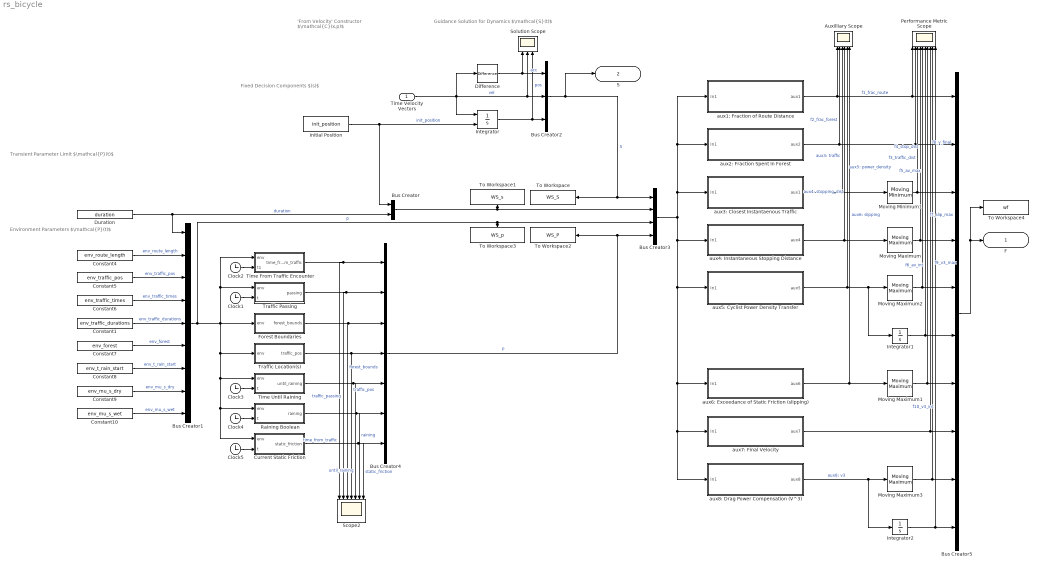
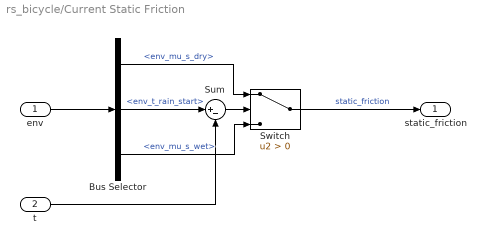
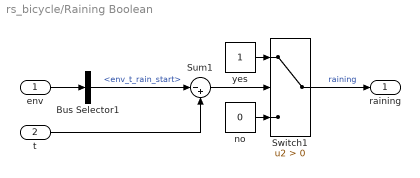
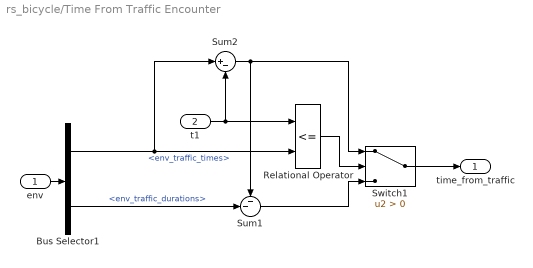
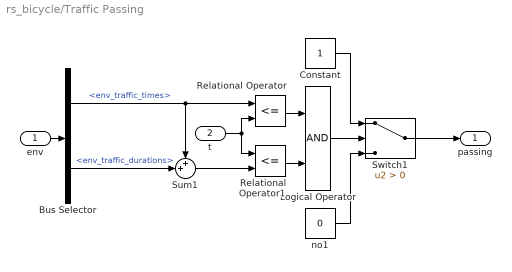
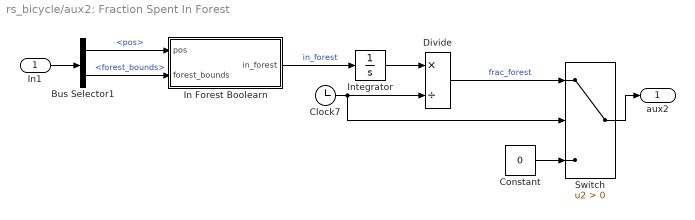
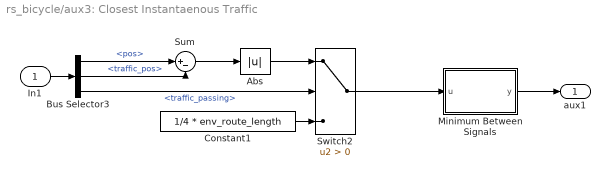
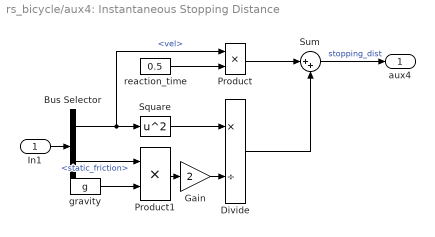
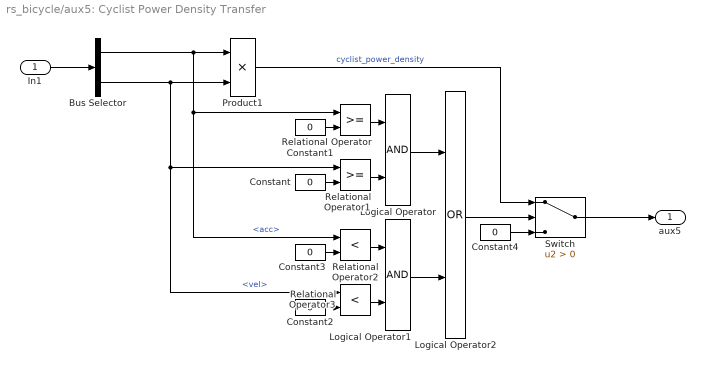
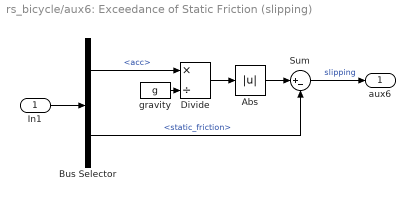
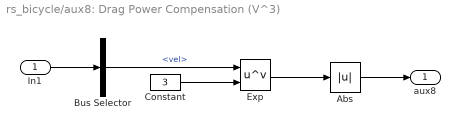
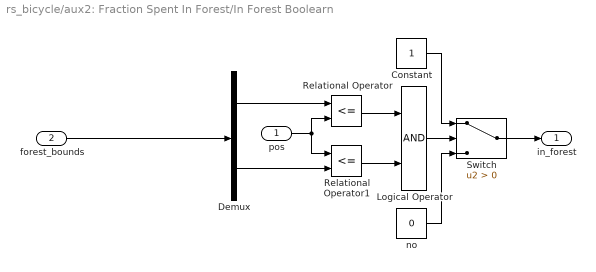
== system rs_bicycle/Forest Boundaries ==
  env : Inport
  Bus Selector : BusSelector  OutputSignals=env_forest,env_route_length
  Product : Product
  forest_bounds : Outport
  wires:
  Bus Selector/1 -> Product/1  "<env_forest>"
  Bus Selector/2 -> Product/2  "<env_route_length>"
  Product/1 -> forest_bounds/1
  env/1 -> Bus Selector/1

== system rs_bicycle/Time Until Raining ==
  env : Inport
  t : Inport  Port=2
  Bus Selector1 : BusSelector  OutputSignals=env_t_rain_start
  Sum1 : Sum  Inputs=|+-
  until_raining : Outport
  wires:
  Bus Selector1/1 -> Sum1/1  "<env_t_rain_start>"
  env/1 -> Bus Selector1/1
  t/1 -> Sum1/2
  Sum1/1 -> until_raining/1

== system rs_bicycle/Traffic Location(s) ==
  env : Inport
  Bus Selector : BusSelector  OutputSignals=env_traffic_pos,env_route_length
  Product : Product
  traffic_pos : Outport
  wires:
  Bus Selector/1 -> Product/1  "<env_traffic_pos>"
  Bus Selector/2 -> Product/2  "<env_route_length>"
  Product/1 -> traffic_pos/1
  env/1 -> Bus Selector/1

== system rs_bicycle/aux1: Fraction of Route Distance ==
  In1 : Inport
  Bus Selector : BusSelector  OutputSignals=S.pos,p.env_route_length
  Divide : Product  Inputs=*/
  Moving Maximum : dspstat3/Moving Maximum  SpecifyWindowLength=on  WindowLength=4  SimulateUsing=Code generation
  aux1 : Outport
  wires:
  Divide/1 -> aux1/1  "frac_dist"
  In1/1 -> Bus Selector/1
  Bus Selector/2 -> Divide/2  "<env_route_length>"
  Bus Selector/1 -> Moving Maximum/1  "<pos>"
  Moving Maximum/1 -> Divide/1

== system rs_bicycle/aux7: Final Velocity ==
  In1 : Inport
  Bus Selector : BusSelector  OutputSignals=S.vel
  aux7 : Outport
  wires:
  In1/1 -> Bus Selector/1
  Bus Selector/1 -> aux7/1  "<vel>"

== matlab function rs_bicycle/aux3: Closest Instantaenous Traffic/Minimum Between Signals
 ==
function y = fcn(u)

y = min(u);

/*
 * rs_bicycle.c
 *
 * Academic License - for use in teaching, academic research, and meeting
 * course requirements at degree granting institutions only.  Not for
 * government, commercial, or other organizational use.
 *
 * Code generation for model "rs_bicycle".
 *
 * Model version              : 1.71
 * Simulink Coder version : 9.2 (R2019b) 18-Jul-2019
 * C source code generated on : Wed Oct 30 16:52:37 2019
 *
 * Target selection: rsim.tlc
 * Note: GRT includes extra infrastructure and instrumentation for prototyping
 * Embedded hardware selection: Intel->x86-64 (Linux 64)
 * Code generation objectives: Unspecified
 * Validation result: Not run
 */

#include <math.h>
#include "rs_bicycle.h"
#include "rs_bicycle_private.h"
#include "rs_bicycle_dt.h"

/* user code (top of parameter file) */
const int_T gblNumToFiles = 0;
const int_T gblNumFrFiles = 0;
const int_T gblNumFrWksBlocks = 0;
const char *gblSlvrJacPatternFileName =
  "rs_bicycle_rsim_rtw//rs_bicycle_Jpattern.mat";

/* Root inports information  */
const int_T gblNumRootInportBlks = 1;
const int_T gblNumModelInputs = 1;
extern rtInportTUtable *gblInportTUtables;
extern const char *gblInportFileName;
const int_T gblInportDataTypeIdx[] = { 0 };

const int_T gblInportDims[] = { 1, 1 } ;

const int_T gblInportComplex[] = { 0 };

const int_T gblInportInterpoFlag[] = { 1 };

const int_T gblInportContinuous[] = { 1 };

#include "simstruc.h"
#include "fixedpoint.h"

/* Block signals (default storage) */
B rtB;

/* Continuous states */
X rtX;

/* Block states (default storage) */
DW rtDW;

/* External inputs (root inport signals with default storage) */
ExtU rtU;

/* External outputs (root outports fed by signals with default storage) */
ExtY rtY;

/* Parent Simstruct */
static SimStruct model_S;
SimStruct *const rtS = &model_S;

/* Forward declaration for local functions */
static void rs_bicycle_SystemCore_release(dsp_MovingMaximum_rs_bicycle_T *obj);
static void rs_bicycle_SystemCore_delete(dsp_MovingMaximum_rs_bicycle_T *obj);
static void matlabCodegenHandle_matlabCodeg(dsp_MovingMaximum_rs_bicycle_T *obj);

/* Forward declaration for local functions */
static real_T AbstractSlidingWindowMinMaxCG_s(e_dsp_private_SlidingWindowMi_T
  *obj, real_T x);
static void rs_bicycl_SystemCore_release_or(dsp_MovingMaximum_rs_bicycl_o_T *obj);
static void rs_bicycle_SystemCore_delete_or(dsp_MovingMaximum_rs_bicycl_o_T *obj);
static void matlabCodegenHandle_matlabCo_or(dsp_MovingMaximum_rs_bicycl_o_T *obj);
static void rs_bicycle_SystemCore_release_o(dsp_MovingMinimum_rs_bicycle_T *obj);
static void rs_bicycle_SystemCore_delete_o(dsp_MovingMinimum_rs_bicycle_T *obj);
static void matlabCodegenHandle_matlabCod_o(dsp_MovingMinimum_rs_bicycle_T *obj);
static void rs_bicycle_SystemCore_release(dsp_MovingMaximum_rs_bicycle_T *obj)
{
  dsp_MovingMaximum_rs_bicycle_T *obj_0;
  e_dsp_private_SlidingWindowMa_T *obj_1;
  if (obj->isInitialized == 1) {
    obj_0 = obj;
    if (obj_0->isSetupComplete) {
      obj_0->NumChannels = -1;
      obj_1 = obj_0->pStat;
      if (obj_1->isInitialized == 1) {
        obj_1->isInitialized = 2;
      }
    }
  }
}

static void rs_bicycle_SystemCore_delete(dsp_MovingMaximum_rs_bicycle_T *obj)
{
  rs_bicycle_SystemCore_release(obj);
}

static void matlabCodegenHandle_matlabCodeg(dsp_MovingMaximum_rs_bicycle_T *obj)
{
  if (!obj->matlabCodegenIsDeleted) {
    obj->matlabCodegenIsDeleted = true;
    rs_bicycle_SystemCore_delete(obj);
  }
}

/*
 * System initialize for atomic system:
 *    synthesized block
 *    synthesized block
 *    synthesized block
 *    synthesized block
 */
void rs_bicycle_MovingMaximum3_Init(DW_MovingMaximum3_rs_bicycle_T *localDW)
{
  dsp_MovingMaximum_rs_bicycle_T *obj;
  e_dsp_private_SlidingWindowMa_T *obj_0;
  int32_T i;

  /* InitializeConditions for MATLABSystem: '<Root>/Moving Maximum3' */
  obj = &localDW->obj;
  obj_0 = obj->pStat;
  if (obj_0->isInitialized == 1) {
    for (i = 0; i < 200; i++) {
      obj_0->pBuffer[i] = 0.0;
    }

    for (i = 0; i < 200; i++) {
      obj_0->pBufferIdx[i] = 0;
    }

    obj_0->pNumElements = 0;
    obj_0->pCount = 1;
    obj_0->pTop = 1;
  }

  /* End of InitializeConditions for MATLABSystem: '<Root>/Moving Maximum3' */
}

/*
 * Start for atomic system:
 *    synthesized block
 *    synthesized block
 *    synthesized block
 *    synthesized block
 */
void rs_bicycle_MovingMaximum3_Start(DW_MovingMaximum3_rs_bicycle_T *localDW)
{
  e_dsp_private_SlidingWindowMa_T *iobj_0;
  dsp_MovingMaximum_rs_bicycle_T *b_obj;
  dsp_MovingMaximum_rs_bicycle_T *obj;

  /* Start for MATLABSystem: '<Root>/Moving Maximum3' */
  localDW->obj.matlabCodegenIsDeleted = true;
  iobj_0 = &localDW->gobj_0;
  b_obj = &localDW->obj;
  b_obj->isInitialized = 0;
  b_obj->NumChannels = -1;
  b_obj->matlabCodegenIsDeleted = false;
  localDW->objisempty = true;
  b_obj = &localDW->obj;
  b_obj->isSetupComplete = false;
  b_obj->isInitialized = 1;
  obj = b_obj;
  obj->NumChannels = 1;
  iobj_0->isInitialized = 0;
  obj->pStat = iobj_0;
  iobj_0 = obj->pStat;
  iobj_0->isSetupComplete = false;
  iobj_0->isInitialized = 1;
  iobj_0->isSetupComplete = true;
  b_obj->isSetupComplete = true;
}

/*
 * Output and update for atomic system:
 *    synthesized block
 *    synthesized block
 *    synthesized block
 *    synthesized block
 */
void rs_bicycle_MovingMaximum3(real_T rtu_0, B_MovingMaximum3_rs_bicycle_T
  *localB, DW_MovingMaximum3_rs_bicycle_T *localDW)
{
  dsp_MovingMaximum_rs_bicycle_T *obj;
  e_dsp_private_SlidingWindowMa_T *obj_0;
  e_dsp_private_SlidingWindowMa_T *obj_1;
  real_T buf[200];
  int32_T bufIdx[200];
  int32_T numElements;
  int32_T cnt;
  int32_T top;
  int32_T winLen;
  int32_T placement;
  int32_T ind_vect[200];
  int32_T N;
  int32_T count;
  int32_T indVal;
  boolean_T cond;
  int32_T b_ind;
  e_dsp_private_SlidingWindowMa_T *obj_2;
  real_T y;
  int32_T i;
  boolean_T exitg1;

  /* MATLABSystem: '<Root>/Moving Maximum3' */
  obj = &localDW->obj;
  obj_0 = obj->pStat;
  if (obj_0->isInitialized != 1) {
    obj_1 = obj_0;
    obj_2 = obj_1;
    obj_2->isSetupComplete = false;
    obj_2->isInitialized = 1;
    obj_2->isSetupComplete = true;
    for (i = 0; i < 200; i++) {
      obj_1->pBuffer[i] = 0.0;
    }

    for (i = 0; i < 200; i++) {
      obj_1->pBufferIdx[i] = 0;
    }

    obj_1->pNumElements = 0;
    obj_1->pCount = 1;
    obj_1->pTop = 1;
  }

  for (i = 0; i < 200; i++) {
    buf[i] = obj_0->pBuffer[i];
  }

  for (i = 0; i < 200; i++) {
    bufIdx[i] = obj_0->pBufferIdx[i];
  }

  numElements = obj_0->pNumElements;
  cnt = obj_0->pCount;
  top = obj_0->pTop;
  if (numElements > 0) {
    i = bufIdx[top - 1];
    if ((cnt >= 0) && (i < cnt - MAX_int32_T)) {
      i = MAX_int32_T;
    } else if ((cnt < 0) && (i > cnt - MIN_int32_T)) {
      i = MIN_int32_T;
    } else {
      i = cnt - i;
    }

    if (i == 200) {
      if (top > 2147483646) {
        top = MAX_int32_T;
      } else {
        top++;
      }

      if (top > 200) {
        top = 1;
      }

      numElements--;
    }
  }

  if ((numElements < 0) && (top < MIN_int32_T - numElements)) {
    i = MIN_int32_T;
  } else if ((numElements > 0) && (top > MAX_int32_T - numElements)) {
    i = MAX_int32_T;
  } else {
    i = numElements + top;
  }

  if (i < -2147483647) {
    placement = MIN_int32_T;
  } else {
    placement = i - 1;
  }

  if (placement >= 200) {
    placement -= 200;
  }

  i = placement + 1;
  placement = i - 1;
  memset(&ind_vect[0], 0, 200U * sizeof(int32_T));
  N = numElements;
  if (numElements > 0) {
    count = 1;
    i = numElements - 1;
    if (i >= 0) {
      if (top < -2147483647) {
        winLen = MIN_int32_T;
      } else {
        winLen = top - 1;
      }
    }

    for (b_ind = i; b_ind >= 0; b_ind--) {
      if ((winLen < 0) && (b_ind < MIN_int32_T - winLen)) {
        indVal = MIN_int32_T;
      } else if ((winLen > 0) && (b_ind > MAX_int32_T - winLen)) {
        indVal = MAX_int32_T;
      } else {
        indVal = winLen + b_ind;
      }

      if (indVal >= 200) {
        indVal -= 200;
      }

      indVal++;
      ind_vect[count - 1] = indVal;
      if (count > 2147483646) {
        count = MAX_int32_T;
      } else {
        count++;
      }
    }

    winLen = 1;
    exitg1 = false;
    while ((!exitg1) && (winLen - 1 <= numElements - 1)) {
      count = winLen - 1;
      count = ind_vect[count];
      y = buf[count - 1];
      cond = (rtu_0 < y);
      if (cond) {
        exitg1 = true;
      } else {
        placement = count - 1;
        if (N < -2147483647) {
          N = MIN_int32_T;
        } else {
          N--;
        }

        winLen++;
      }
    }
  }

  buf[placement] = rtu_0;
  bufIdx[placement] = cnt;
  if (N > 2147483646) {
    numElements = MAX_int32_T;
  } else {
    numElements = N + 1;
  }

  y = buf[top - 1];
  if (cnt > 2147483646) {
    cnt = MAX_int32_T;
  } else {
    cnt++;
  }

  if (cnt > 1000000) {
    cnt -= 1000000;
    for (winLen = 0; winLen < 200; winLen++) {
      i = bufIdx[winLen];
      if (i < -2146483648) {
        i = MIN_int32_T;
      } else {
        i -= 1000000;
      }

      bufIdx[winLen] = i;
    }
  }

  for (i = 0; i < 200; i++) {
    obj_0->pBuffer[i] = buf[i];
  }

  for (i = 0; i < 200; i++) {
    obj_0->pBufferIdx[i] = bufIdx[i];
  }

  obj_0->pNumElements = numElements;
  obj_0->pCount = cnt;
  obj_0->pTop = top;
  localB->f9_v3_max = y;

  /* End of MATLABSystem: '<Root>/Moving Maximum3' */
}

/*
 * Termination for atomic system:
 *    synthesized block
 *    synthesized block
 *    synthesized block
 *    synthesized block
 */
void rs_bicycle_MovingMaximum3_Term(DW_MovingMaximum3_rs_bicycle_T *localDW)
{
  /* Terminate for MATLABSystem: '<Root>/Moving Maximum3' */
  matlabCodegenHandle_matlabCodeg(&localDW->obj);
}

static real_T AbstractSlidingWindowMinMaxCG_s(e_dsp_private_SlidingWindowMi_T
  *obj, real_T x)
{
  real_T m;
  real_T buf[500];
  int32_T bufIdx[500];
  int32_T numElements;
  int32_T cnt;
  int32_T top;
  int32_T winLen;
  int32_T placement;
  int32_T ind_vect[500];
  int32_T N;
  int32_T count;
  int32_T indVal;
  boolean_T cond;
  int32_T b_ind;
  real_T y;
  int32_T qY;
  boolean_T exitg1;
  memcpy(&buf[0], &obj->pBuffer[0], 500U * sizeof(real_T));
  memcpy(&bufIdx[0], &obj->pBufferIdx[0], 500U * sizeof(int32_T));
  numElements = obj->pNumElements;
  cnt = obj->pCount;
  top = obj->pTop;
  if (numElements > 0) {
    winLen = bufIdx[top - 1];
    if ((cnt >= 0) && (winLen < cnt - MAX_int32_T)) {
      winLen = MAX_int32_T;
    } else if ((cnt < 0) && (winLen > cnt - MIN_int32_T)) {
      winLen = MIN_int32_T;
    } else {
      winLen = cnt - winLen;
    }

    if (winLen == 500) {
      if (top > 2147483646) {
        top = MAX_int32_T;
      } else {
        top++;
      }

      if (top > 500) {
        top = 1;
      }

      numElements--;
    }
  }

  if ((numElements < 0) && (top < MIN_int32_T - numElements)) {
    winLen = MIN_int32_T;
  } else if ((numElements > 0) && (top > MAX_int32_T - numElements)) {
    winLen = MAX_int32_T;
  } else {
    winLen = numElements + top;
  }

  if (winLen < -2147483647) {
    placement = MIN_int32_T;
  } else {
    placement = winLen - 1;
  }

  if (placement >= 500) {
    placement -= 500;
  }

  winLen = placement + 1;
  placement = winLen - 1;
  memset(&ind_vect[0], 0, 500U * sizeof(int32_T));
  N = numElements;
  if (numElements > 0) {
    count = 1;
    winLen = numElements - 1;
    if (winLen >= 0) {
      if (top < -2147483647) {
        qY = MIN_int32_T;
      } else {
        qY = top - 1;
      }
    }

    for (b_ind = winLen; b_ind >= 0; b_ind--) {
      if ((qY < 0) && (b_ind < MIN_int32_T - qY)) {
        indVal = MIN_int32_T;
      } else if ((qY > 0) && (b_ind > MAX_int32_T - qY)) {
        indVal = MAX_int32_T;
      } else {
        indVal = qY + b_ind;
      }

      if (indVal >= 500) {
        indVal -= 500;
      }

      indVal++;
      ind_vect[count - 1] = indVal;
      if (count > 2147483646) {
        count = MAX_int32_T;
      } else {
        count++;
      }
    }

    winLen = 1;
    exitg1 = false;
    while ((!exitg1) && (winLen - 1 <= numElements - 1)) {
      count = winLen - 1;
      count = ind_vect[count];
      y = buf[count - 1];
      cond = (x > y);
      if (cond) {
        exitg1 = true;
      } else {
        placement = count - 1;
        if (N < -2147483647) {
          N = MIN_int32_T;
        } else {
          N--;
        }

        winLen++;
      }
    }
  }

  buf[placement] = x;
  bufIdx[placement] = cnt;
  if (N > 2147483646) {
    numElements = MAX_int32_T;
  } else {
    numElements = N + 1;
  }

  m = buf[top - 1];
  if (cnt > 2147483646) {
    cnt = MAX_int32_T;
  } else {
    cnt++;
  }

  if (cnt > 1000000) {
    cnt -= 1000000;
    for (placement = 0; placement < 500; placement++) {
      winLen = bufIdx[placement];
      if (winLen < -2146483648) {
        winLen = MIN_int32_T;
      } else {
        winLen -= 1000000;
      }

      bufIdx[placement] = winLen;
    }
  }

  memcpy(&obj->pBuffer[0], &buf[0], 500U * sizeof(real_T));
  memcpy(&obj->pBufferIdx[0], &bufIdx[0], 500U * sizeof(int32_T));
  obj->pNumElements = numElements;
  obj->pCount = cnt;
  obj->pTop = top;
  return m;
}

real_T rt_powd_snf(real_T u0, real_T u1)
{
  real_T y;
  real_T tmp;
  real_T tmp_0;
  if (rtIsNaN(u0) || rtIsNaN(u1)) {
    y = (rtNaN);
  } else {
    tmp = fabs(u0);
    tmp_0 = fabs(u1);
    if (rtIsInf(u1)) {
      if (tmp == 1.0) {
        y = 1.0;
      } else if (tmp > 1.0) {
        if (u1 > 0.0) {
          y = (rtInf);
        } else {
          y = 0.0;
        }
      } else if (u1 > 0.0) {
        y = 0.0;
      } else {
        y = (rtInf);
      }
    } else if (tmp_0 == 0.0) {
      y = 1.0;
    } else if (tmp_0 == 1.0) {
      if (u1 > 0.0) {
        y = u0;
      } else {
        y = 1.0 / u0;
      }
    } else if (u1 == 2.0) {
      y = u0 * u0;
    } else if ((u1 == 0.5) && (u0 >= 0.0)) {
      y = sqrt(u0);
    } else if ((u0 < 0.0) && (u1 > floor(u1))) {
      y = (rtNaN);
    } else {
      y = pow(u0, u1);
    }
  }

  return y;
}

static void rs_bicycl_SystemCore_release_or(dsp_MovingMaximum_rs_bicycl_o_T *obj)
{
  dsp_MovingMaximum_rs_bicycl_o_T *obj_0;
  e_dsp_private_SlidingWindow_o_T *obj_1;
  if (obj->isInitialized == 1) {
    obj_0 = obj;
    if (obj_0->isSetupComplete) {
      obj_0->NumChannels = -1;
      obj_1 = obj_0->pStat;
      if (obj_1->isInitialized == 1) {
        obj_1->isInitialized = 2;
      }
    }
  }
}

static void rs_bicycle_SystemCore_delete_or(dsp_MovingMaximum_rs_bicycl_o_T *obj)
{
  rs_bicycl_SystemCore_release_or(obj);
}

static void matlabCodegenHandle_matlabCo_or(dsp_MovingMaximum_rs_bicycl_o_T *obj)
{
  if (!obj->matlabCodegenIsDeleted) {
    obj->matlabCodegenIsDeleted = true;
    rs_bicycle_SystemCore_delete_or(obj);
  }
}

static void rs_bicycle_SystemCore_release_o(dsp_MovingMinimum_rs_bicycle_T *obj)
{
  dsp_MovingMinimum_rs_bicycle_T *obj_0;
  e_dsp_private_SlidingWindowMi_T *obj_1;
  if (obj->isInitialized == 1) {
    obj_0 = obj;
    if (obj_0->isSetupComplete) {
      obj_0->NumChannels = -1;
      obj_1 = obj_0->pStat;
      if (obj_1->isInitialized == 1) {
        obj_1->isInitialized = 2;
      }
    }
  }
}

static void rs_bicycle_SystemCore_delete_o(dsp_MovingMinimum_rs_bicycle_T *obj)
{
  rs_bicycle_SystemCore_release_o(obj);
}

static void matlabCodegenHandle_matlabCod_o(dsp_MovingMinimum_rs_bicycle_T *obj)
{
  if (!obj->matlabCodegenIsDeleted) {
    obj->matlabCodegenIsDeleted = true;
    rs_bicycle_SystemCore_delete_o(obj);
  }
}

/* System initialize for root system: '<Root>' */
void MdlInitialize(void)
{
  dsp_MovingMaximum_rs_bicycl_o_T *obj;
  e_dsp_private_SlidingWindow_o_T *obj_0;
  dsp_MovingMinimum_rs_bicycle_T *obj_1;
  e_dsp_private_SlidingWindowMi_T *obj_2;
  int32_T i;

  /* InitializeConditions for Integrator: '<Root>/Integrator' */
  if (ssIsFirstInitCond(rtS)) {
    rtX.Integrator_CSTATE = 0.0;
  }

  rtDW.Integrator_IWORK = 1;

  /* End of InitializeConditions for Integrator: '<Root>/Integrator' */

  /* InitializeConditions for Integrator: '<S10>/Integrator' */
  rtX.Integrator_CSTATE_a = rtP.Integrator_IC;

  /* InitializeConditions for UnitDelay: '<S2>/UD' */
  rtDW.UD_DSTATE = rtP.Difference_ICPrevInput;

  /* InitializeConditions for Integrator: '<Root>/Integrator1' */
  rtX.Integrator1_CSTATE = rtP.Integrator1_IC;

  /* InitializeConditions for Integrator: '<Root>/Integrator2' */
  rtX.Integrator2_CSTATE = rtP.Integrator2_IC;

  /* InitializeConditions for MATLABSystem: '<S9>/Moving Maximum' */
  obj = &rtDW.obj_g;
  obj_0 = obj->pStat;
  if (obj_0->isInitialized == 1) {
    obj_0->pBuffer[0] = 0.0;
    obj_0->pBuffer[1] = 0.0;
    obj_0->pBuffer[2] = 0.0;
    obj_0->pBuffer[3] = 0.0;
    obj_0->pBufferIdx[0] = 0;
    obj_0->pBufferIdx[1] = 0;
    obj_0->pBufferIdx[2] = 0;
    obj_0->pBufferIdx[3] = 0;
    obj_0->pNumElements = 0;
    obj_0->pCount = 1;
    obj_0->pTop = 1;
  }

  /* End of InitializeConditions for MATLABSystem: '<S9>/Moving Maximum' */

  /* InitializeConditions for MATLABSystem: '<Root>/Moving Minimum1' */
  obj_1 = &rtDW.obj;
  obj_2 = obj_1->pStat;
  if (obj_2->isInitialized == 1) {
    for (i = 0; i < 500; i++) {
      obj_2->pBuffer[i] = 0.0;
    }

    for (i = 0; i < 500; i++) {
      obj_2->pBufferIdx[i] = 0;
    }

    obj_2->pNumElements = 0;
    obj_2->pCount = 1;
    obj_2->pTop = 1;
  }

  /* End of InitializeConditions for MATLABSystem: '<Root>/Moving Minimum1' */
  rs_bicycle_MovingMaximum3_Init(&rtDW.MovingMaximum);
  rs_bicycle_MovingMaximum3_Init(&rtDW.MovingMaximum2);
  rs_bicycle_MovingMaximum3_Init(&rtDW.MovingMaximum1);
  rs_bicycle_MovingMaximum3_Init(&rtDW.MovingMaximum3);
}

/* Start for root system: '<Root>' */
void MdlStart(void)
{
  e_dsp_private_SlidingWindow_o_T *iobj_0;
  dsp_MovingMaximum_rs_bicycl_o_T *b_obj;
  dsp_MovingMaximum_rs_bicycl_o_T *obj;
  e_dsp_private_SlidingWindowMi_T *iobj_0_0;
  dsp_MovingMinimum_rs_bicycle_T *b_obj_0;
  dsp_MovingMinimum_rs_bicycle_T *obj_0;

  /* Start for Constant: '<Root>/Initial Position' */
  rtB.init_position = rtP.init_position;

  /* Start for MATLABSystem: '<S9>/Moving Maximum' */
  rtDW.obj_g.matlabCodegenIsDeleted = true;
  iobj_0 = &rtDW.gobj_0_h;
  b_obj = &rtDW.obj_g;
  b_obj->isInitialized = 0;
  b_obj->NumChannels = -1;
  b_obj->matlabCodegenIsDeleted = false;
  rtDW.objisempty = true;
  b_obj = &rtDW.obj_g;
  b_obj->isSetupComplete = false;
  b_obj->isInitialized = 1;
  obj = b_obj;
  obj->NumChannels = 1;
  iobj_0->isInitialized = 0;
  obj->pStat = iobj_0;
  iobj_0 = obj->pStat;
  iobj_0->isSetupComplete = false;
  iobj_0->isInitialized = 1;
  iobj_0->isSetupComplete = true;
  b_obj->isSetupComplete = true;

  /* Start for MATLABSystem: '<Root>/Moving Minimum1' */
  rtDW.obj.matlabCodegenIsDeleted = true;
  iobj_0_0 = &rtDW.gobj_0;
  b_obj_0 = &rtDW.obj;
  b_obj_0->isInitialized = 0;
  b_obj_0->NumChannels = -1;
  b_obj_0->matlabCodegenIsDeleted = false;
  rtDW.objisempty_g = true;
  b_obj_0 = &rtDW.obj;
  b_obj_0->isSetupComplete = false;
  b_obj_0->isInitialized = 1;
  obj_0 = b_obj_0;
  obj_0->NumChannels = 1;
  iobj_0_0->isInitialized = 0;
  obj_0->pStat = iobj_0_0;
  iobj_0_0 = obj_0->pStat;
  iobj_0_0->isSetupComplete = false;
  iobj_0_0->isInitialized = 1;
  iobj_0_0->isSetupComplete = true;
  b_obj_0->isSetupComplete = true;
  rs_bicycle_MovingMaximum3_Start(&rtDW.MovingMaximum);
  rs_bicycle_MovingMaximum3_Start(&rtDW.MovingMaximum2);
  rs_bicycle_MovingMaximum3_Start(&rtDW.MovingMaximum1);
  rs_bicycle_MovingMaximum3_Start(&rtDW.MovingMaximum3);
  MdlInitialize();
}

/* Outputs for root system: '<Root>' */
void MdlOutputs(int_T tid)
{
  dsp_MovingMaximum_rs_bicycl_o_T *obj;
  e_dsp_private_SlidingWindow_o_T *obj_0;
  e_dsp_private_SlidingWindow_o_T *obj_1;
  real_T buf[4];
  int32_T bufIdx[4];
  int32_T numElements;
  int32_T cnt;
  int32_T top;
  int32_T winLen;
  int32_T placement;
  int32_T ind_vect[4];
  int32_T N;
  int32_T count;
  int32_T indVal;
  boolean_T cond;
  int32_T b_ind;
  e_dsp_private_SlidingWindow_o_T *obj_2;
  real_T y;
  dsp_MovingMinimum_rs_bicycle_T *obj_3;
  e_dsp_private_SlidingWindowMi_T *obj_4;
  e_dsp_private_SlidingWindowMi_T *obj_5;
  e_dsp_private_SlidingWindowMi_T *obj_6;
  real_T Bias;
  int32_T qY;
  boolean_T exitg1;

  /* Read data from the mat file of inport block */
  if (gblInportFileName != (NULL)) {
    int_T currTimeIdx;
    int_T i;

    /*
     *  Read in data from mat file for root inport vel
     */
    if (gblInportTUtables[0].nTimePoints > 0) {
      if (1) {
        {
          real_T time = ssGetTaskTime(rtS,0);
          int k = 1;
          if (gblInportTUtables[0].nTimePoints == 1) {
            k = 0;
          }

          currTimeIdx = rt_getTimeIdx(gblInportTUtables[0].time, time,
            gblInportTUtables[0].nTimePoints,
            gblInportTUtables[0].currTimeIdx,
            1,
            0);
          gblInportTUtables[0].currTimeIdx = currTimeIdx;
          for (i = 0; i < 1; i++) {
            real_T* realPtr1 = (real_T*)gblInportTUtables[0].ur +
              i*gblInportTUtables[0].nTimePoints +currTimeIdx;
            real_T* realPtr2 = realPtr1 + 1*k;
            (void)rt_Interpolate_Datatype(
              realPtr1,
              realPtr2,
              &rtU.vel,
              time,
              gblInportTUtables[0].time[currTimeIdx],
              gblInportTUtables[0].time[currTimeIdx + k],
              gblInportTUtables[0].uDataType);
          }
        }
      }
    }
  }

  /* end read inport data from file */
  if (ssIsSampleHit(rtS, 1, 0)) {
    /* Constant: '<Root>/Initial Position' */
    rtB.init_position = rtP.init_position;
  }

  /* Integrator: '<Root>/Integrator' */
  if (rtDW.Integrator_IWORK != 0) {
    rtX.Integrator_CSTATE = rtB.init_position;
  }

  rtB.pos = rtX.Integrator_CSTATE;

  /* End of Integrator: '<Root>/Integrator' */

  /* MATLABSystem: '<S9>/Moving Maximum' */
  Bias = rtB.pos;
  obj = &rtDW.obj_g;
  obj_0 = obj->pStat;
  if (obj_0->isInitialized != 1) {
    obj_1 = obj_0;
    obj_2 = obj_1;
    obj_2->isSetupComplete = false;
    obj_2->isInitialized = 1;
    obj_2->isSetupComplete = true;
    obj_1->pBuffer[0] = 0.0;
    obj_1->pBuffer[1] = 0.0;
    obj_1->pBuffer[2] = 0.0;
    obj_1->pBuffer[3] = 0.0;
    obj_1->pBufferIdx[0] = 0;
    obj_1->pBufferIdx[1] = 0;
    obj_1->pBufferIdx[2] = 0;
    obj_1->pBufferIdx[3] = 0;
    obj_1->pNumElements = 0;
    obj_1->pCount = 1;
    obj_1->pTop = 1;
  }

  buf[0] = obj_0->pBuffer[0];
  buf[1] = obj_0->pBuffer[1];
  buf[2] = obj_0->pBuffer[2];
  buf[3] = obj_0->pBuffer[3];
  bufIdx[0] = obj_0->pBufferIdx[0];
  bufIdx[1] = obj_0->pBufferIdx[1];
  bufIdx[2] = obj_0->pBufferIdx[2];
  bufIdx[3] = obj_0->pBufferIdx[3];
  numElements = obj_0->pNumElements;
  cnt = obj_0->pCount;
  top = obj_0->pTop;
  if (numElements > 0) {
    placement = bufIdx[top - 1];
    if ((cnt >= 0) && (placement < cnt - MAX_int32_T)) {
      qY = MAX_int32_T;
    } else if ((cnt < 0) && (placement > cnt - MIN_int32_T)) {
      qY = MIN_int32_T;
    } else {
      qY = cnt - placement;
    }

    if (qY == 4) {
      if (top > 2147483646) {
        top = MAX_int32_T;
      } else {
        top++;
      }

      if (top > 4) {
        top = 1;
      }

      numElements--;
    }
  }

  if ((numElements < 0) && (top < MIN_int32_T - numElements)) {
    qY = MIN_int32_T;
  } else if ((numElements > 0) && (top > MAX_int32_T - numElements)) {
    qY = MAX_int32_T;
  } else {
    qY = numElements + top;
  }

  if (qY < -2147483647) {
    placement = MIN_int32_T;
  } else {
    placement = qY - 1;
  }

  if (placement >= 4) {
    placement -= 4;
  }

  qY = placement + 1;
  placement = qY - 1;
  ind_vect[0] = 0;
  ind_vect[1] = 0;
  ind_vect[2] = 0;
  ind_vect[3] = 0;
  N = numElements;
  if (numElements > 0) {
    count = 1;
    qY = numElements - 1;
    if (qY >= 0) {
      if (top < -2147483647) {
        winLen = MIN_int32_T;
      } else {
        winLen = top - 1;
      }
    }

    for (b_ind = qY; b_ind >= 0; b_ind--) {
      if ((winLen < 0) && (b_ind < MIN_int32_T - winLen)) {
        indVal = MIN_int32_T;
      } else if ((winLen > 0) && (b_ind > MAX_int32_T - winLen)) {
        indVal = MAX_int32_T;
      } else {
        indVal = winLen + b_ind;
      }

      if (indVal >= 4) {
        indVal -= 4;
      }

      indVal++;
      ind_vect[count - 1] = indVal;
      if (count > 2147483646) {
        count = MAX_int32_T;
      } else {
        count++;
      }
    }

    winLen = 1;
    exitg1 = false;
    while ((!exitg1) && (winLen - 1 <= numElements - 1)) {
      count = winLen - 1;
      count = ind_vect[count];
      y = buf[count - 1];
      cond = (Bias < y);
      if (cond) {
        exitg1 = true;
      } else {
        placement = count - 1;
        if (N < -2147483647) {
          N = MIN_int32_T;
        } else {
          N--;
        }

        winLen++;
      }
    }
  }

  buf[placement] = Bias;
  bufIdx[placement] = cnt;
  if (N > 2147483646) {
    numElements = MAX_int32_T;
  } else {
    numElements = N + 1;
  }

  Bias = buf[top - 1];
  if (cnt > 2147483646) {
    cnt = MAX_int32_T;
  } else {
    cnt++;
  }

  if (cnt > 1000000) {
    cnt -= 1000000;
    qY = bufIdx[0];
    if (qY < -2146483648) {
      qY = MIN_int32_T;
    } else {
      qY -= 1000000;
    }

    bufIdx[0] = qY;
    qY = bufIdx[1];
    if (qY < -2146483648) {
      qY = MIN_int32_T;
    } else {
      qY -= 1000000;
    }

    bufIdx[1] = qY;
    qY = bufIdx[2];
    if (qY < -2146483648) {
      qY = MIN_int32_T;
    } else {
      qY -= 1000000;
    }

    bufIdx[2] = qY;
    qY = bufIdx[3];
    if (qY < -2146483648) {
      qY = MIN_int32_T;
    } else {
      qY -= 1000000;
    }

    bufIdx[3] = qY;
  }

  obj_0->pBuffer[0] = buf[0];
  obj_0->pBuffer[1] = buf[1];
  obj_0->pBuffer[2] = buf[2];
  obj_0->pBuffer[3] = buf[3];
  obj_0->pBufferIdx[0] = bufIdx[0];
  obj_0->pBufferIdx[1] = bufIdx[1];
  obj_0->pBufferIdx[2] = bufIdx[2];
  obj_0->pBufferIdx[3] = bufIdx[3];
  obj_0->pNumElements = numElements;
  obj_0->pCount = cnt;
  obj_0->pTop = top;
  rtB.MovingMaximum_o = Bias;

  /* End of MATLABSystem: '<S9>/Moving Maximum' */

  /* Product: '<S9>/Divide' incorporates:
   *  Constant: '<Root>/Constant4'
   */
  rtB.frac_dist = rtB.MovingMaximum_o / rtP.env_route_length;

  /* Integrator: '<S10>/Integrator' */
  rtB.Integrator = rtX.Integrator_CSTATE_a;

  /* Clock: '<S10>/Clock7' */
  rtB.Clock7 = ssGetT(rtS);

  /* Switch: '<S10>/Switch' incorporates:
   *  Constant: '<S10>/Constant'
   */
  if (rtB.Clock7 > rtP.Switch_Threshold) {
    /* Product: '<S10>/Divide' */
    rtB.frac_forest = rtB.Integrator / rtB.Clock7;
    rtB.Switch = rtB.frac_forest;
  } else {
    rtB.Switch = rtP.Constant_Value;
  }

  /* End of Switch: '<S10>/Switch' */
  if (ssIsSampleHit(rtS, 1, 0)) {
    /* Product: '<S7>/Product' incorporates:
     *  Constant: '<Root>/Constant4'
     *  Constant: '<Root>/Constant5'
     */
    rtB.Product[0] = rtP.env_traffic_pos[0] * rtP.env_route_length;
    rtB.Product[1] = rtP.env_traffic_pos[1] * rtP.env_route_length;
  }

  /* Clock: '<Root>/Clock1' */
  rtB.Clock1 = ssGetT(rtS);

  /* Sum: '<S11>/Sum' */
  rtB.Sum[0] = rtB.pos - rtB.Product[0];

  /* Abs: '<S11>/Abs' */
  rtB.Abs[0] = fabs(rtB.Sum[0]);

  /* RelationalOperator: '<S8>/Relational Operator' incorporates:
   *  Constant: '<Root>/Constant6'
   */
  rtB.RelationalOperator[0] = (rtP.env_traffic_times[0] <= rtB.Clock1);

  /* Sum: '<S11>/Sum' */
  rtB.Sum[1] = rtB.pos - rtB.Product[1];

  /* Abs: '<S11>/Abs' */
  rtB.Abs[1] = fabs(rtB.Sum[1]);

  /* RelationalOperator: '<S8>/Relational Operator' incorporates:
   *  Constant: '<Root>/Constant6'
   */
  rtB.RelationalOperator[1] = (rtP.env_traffic_times[1] <= rtB.Clock1);
  if (ssIsSampleHit(rtS, 1, 0)) {
    /* Sum: '<S8>/Sum1' incorporates:
     *  Constant: '<Root>/Constant1'
     *  Constant: '<Root>/Constant6'
     */
    rtB.Sum1[0] = rtP.env_traffic_times[0] + rtP.env_traffic_durations[0];
    rtB.Sum1[1] = rtP.env_traffic_times[1] + rtP.env_traffic_durations[1];
  }

  /* Switch: '<S11>/Switch2' incorporates:
   *  Constant: '<S11>/Constant1'
   */
  Bias = 0.25 * rtP.env_route_length;

  /* RelationalOperator: '<S8>/Relational Operator1' */
  rtB.RelationalOperator1[0] = (rtB.Clock1 <= rtB.Sum1[0]);

  /* Logic: '<S8>/Logical Operator' */
  rtB.LogicalOperator[0] = (rtB.RelationalOperator[0] &&
    rtB.RelationalOperator1[0]);

  /* Switch: '<S8>/Switch1' incorporates:
   *  Constant: '<S8>/Constant'
   *  Constant: '<S8>/no1'
   */
  if (rtB.LogicalOperator[0]) {
    rtB.Switch1[0] = rtP.Constant_Value_d;
  } else {
    rtB.Switch1[0] = rtP.no1_Value;
  }

  /* Switch: '<S11>/Switch2' */
  if (rtB.Switch1[0] > rtP.Switch2_Threshold) {
    rtB.Switch2[0] = rtB.Abs[0];
  } else {
    rtB.Switch2[0] = Bias;
  }

  /* RelationalOperator: '<S8>/Relational Operator1' */
  rtB.RelationalOperator1[1] = (rtB.Clock1 <= rtB.Sum1[1]);

  /* Logic: '<S8>/Logical Operator' */
  rtB.LogicalOperator[1] = (rtB.RelationalOperator[1] &&
    rtB.RelationalOperator1[1]);

  /* Switch: '<S8>/Switch1' incorporates:
   *  Constant: '<S8>/Constant'
   *  Constant: '<S8>/no1'
   */
  if (rtB.LogicalOperator[1]) {
    rtB.Switch1[1] = rtP.Constant_Value_d;
  } else {
    rtB.Switch1[1] = rtP.no1_Value;
  }

  /* Switch: '<S11>/Switch2' */
  if (rtB.Switch1[1] > rtP.Switch2_Threshold) {
    rtB.Switch2[1] = rtB.Abs[1];
  } else {
    rtB.Switch2[1] = Bias;
  }

  /* MATLAB Function: '<S11>/Minimum Between Signals ' */
  /* :  y = min(u); */
  if ((rtB.Switch2[0] > rtB.Switch2[1]) || (rtIsNaN(rtB.Switch2[0]) && (!rtIsNaN
        (rtB.Switch2[1])))) {
    rtB.y = rtB.Switch2[1];
  } else {
    rtB.y = rtB.Switch2[0];
  }

  /* End of MATLAB Function: '<S11>/Minimum Between Signals ' */

  /* MATLABSystem: '<Root>/Moving Minimum1' */
  Bias = rtB.y;
  obj_3 = &rtDW.obj;
  obj_4 = obj_3->pStat;
  if (obj_4->isInitialized != 1) {
    obj_5 = obj_4;
    obj_6 = obj_5;
    obj_6->isSetupComplete = false;
    obj_6->isInitialized = 1;
    obj_6->isSetupComplete = true;
    for (numElements = 0; numElements < 500; numElements++) {
      obj_5->pBuffer[numElements] = 0.0;
    }

    for (numElements = 0; numElements < 500; numElements++) {
      obj_5->pBufferIdx[numElements] = 0;
    }

    obj_5->pNumElements = 0;
    obj_5->pCount = 1;
    obj_5->pTop = 1;
  }

  Bias = AbstractSlidingWindowMinMaxCG_s(obj_4, Bias);
  rtB.f3_traffic_dist = Bias;

  /* End of MATLABSystem: '<Root>/Moving Minimum1' */

  /* Product: '<S12>/Product' incorporates:
   *  Constant: '<S12>/reaction_time'
   *  Inport: '<Root>/Time Velocity Vectors'
   */
  rtB.Product_c = rtU.vel * rtP.reaction_time_Value;

  /* Math: '<S12>/Square' incorporates:
   *  Inport: '<Root>/Time Velocity Vectors'
   */
  rtB.Square = rtU.vel * rtU.vel;

  /* Clock: '<Root>/Clock5' */
  rtB.Clock5 = ssGetT(rtS);

  /* Sum: '<S1>/Sum' incorporates:
   *  Constant: '<Root>/Constant8'
   */
  rtB.Sum_n = rtP.env_t_rain_start - rtB.Clock5;

  /* Switch: '<S1>/Switch' incorporates:
   *  Constant: '<Root>/Constant10'
   *  Constant: '<Root>/Constant9'
   */
  if (rtB.Sum_n > rtP.Switch_Threshold_h) {
    rtB.static_friction = rtP.env_mu_s_dry;
  } else {
    rtB.static_friction = rtP.env_mu_s_wet;
  }

  /* End of Switch: '<S1>/Switch' */

  /* Product: '<S12>/Product1' incorporates:
   *  Constant: '<S12>/gravity'
   */
  rtB.Product1 = rtB.static_friction * rtP.g;

  /* Gain: '<S12>/Gain' */
  rtB.Gain = rtP.Gain_Gain * rtB.Product1;

  /* Product: '<S12>/Divide' */
  rtB.Divide = rtB.Square / rtB.Gain;

  /* Sum: '<S12>/Sum' */
  rtB.stopping_dist = rtB.Product_c + rtB.Divide;
  rs_bicycle_MovingMaximum3(rtB.stopping_dist, &rtB.MovingMaximum,
    &rtDW.MovingMaximum);
  if (ssIsSampleHit(rtS, 1, 0)) {
    /* UnitDelay: '<S2>/UD' */
    rtB.Uk1 = rtDW.UD_DSTATE;

    /* Sum: '<S2>/Diff' incorporates:
     *  Inport: '<Root>/Time Velocity Vectors'
     */
    rtB.Diff = rtU.vel - rtB.Uk1;

    /* RelationalOperator: '<S13>/Relational Operator' incorporates:
     *  Constant: '<S13>/Constant1'
     */
    rtB.RelationalOperator_p = (rtB.Diff >= rtP.Constant1_Value);

    /* RelationalOperator: '<S13>/Relational Operator2' incorporates:
     *  Constant: '<S13>/Constant3'
     */
    rtB.RelationalOperator2 = (rtB.Diff < rtP.Constant3_Value);
  }

  /* RelationalOperator: '<S13>/Relational Operator1' incorporates:
   *  Constant: '<S13>/Constant'
   *  Inport: '<Root>/Time Velocity Vectors'
   */
  rtB.RelationalOperator1_c = (rtU.vel >= rtP.Constant_Value_k);

  /* Logic: '<S13>/Logical Operator' */
  rtB.LogicalOperator_l = (rtB.RelationalOperator_p && rtB.RelationalOperator1_c);

  /* RelationalOperator: '<S13>/Relational Operator3' incorporates:
   *  Constant: '<S13>/Constant2'
   *  Inport: '<Root>/Time Velocity Vectors'
   */
  rtB.RelationalOperator3 = (rtU.vel < rtP.Constant2_Value);

  /* Logic: '<S13>/Logical Operator1' */
  rtB.LogicalOperator1 = (rtB.RelationalOperator2 && rtB.RelationalOperator3);

  /* Logic: '<S13>/Logical Operator2' */
  rtB.LogicalOperator2 = (rtB.LogicalOperator_l || rtB.LogicalOperator1);

  /* Switch: '<S13>/Switch' incorporates:
   *  Constant: '<S13>/Constant4'
   */
  if (rtB.LogicalOperator2) {
    /* Product: '<S13>/Product1' incorporates:
     *  Inport: '<Root>/Time Velocity Vectors'
     */
    rtB.cyclist_power_density = rtB.Diff * rtU.vel;
    rtB.Switch_h = rtB.cyclist_power_density;
  } else {
    rtB.Switch_h = rtP.Constant4_Value;
  }

  /* End of Switch: '<S13>/Switch' */
  rs_bicycle_MovingMaximum3(rtB.Switch_h, &rtB.MovingMaximum2,
    &rtDW.MovingMaximum2);

  /* Integrator: '<Root>/Integrator1' */
  rtB.f6_av_int = rtX.Integrator1_CSTATE;
  if (ssIsSampleHit(rtS, 1, 0)) {
    /* Product: '<S14>/Divide' incorporates:
     *  Constant: '<S14>/gravity'
     */
    rtB.Divide_l = rtB.Diff / rtP.g;

    /* Abs: '<S14>/Abs' */
    rtB.Abs_d = fabs(rtB.Divide_l);
  }

  /* Sum: '<S14>/Sum' */
  rtB.slipping = rtB.Abs_d - rtB.static_friction;
  rs_bicycle_MovingMaximum3(rtB.slipping, &rtB.MovingMaximum1,
    &rtDW.MovingMaximum1);

  /* Math: '<S16>/Exp' incorporates:
   *  Constant: '<S16>/Constant'
   *  Inport: '<Root>/Time Velocity Vectors'
   */
  rtB.Exp = rt_powd_snf(rtU.vel, rtP.Constant_Value_j);

  /* Abs: '<S16>/Abs' */
  rtB.Abs_h = fabs(rtB.Exp);
  rs_bicycle_MovingMaximum3(rtB.Abs_h, &rtB.MovingMaximum3, &rtDW.MovingMaximum3);

  /* Integrator: '<Root>/Integrator2' */
  rtB.f10_v3_int = rtX.Integrator2_CSTATE;

  /* Outport: '<Root>/F' incorporates:
   *  Inport: '<Root>/Time Velocity Vectors'
   */
  rtY.F[0] = rtB.frac_dist;
  rtY.F[1] = rtB.Switch;
  rtY.F[2] = rtB.f3_traffic_dist;
  rtY.F[3] = rtB.MovingMaximum.f9_v3_max;
  rtY.F[4] = rtB.MovingMaximum2.f9_v3_max;
  rtY.F[5] = rtB.f6_av_int;
  rtY.F[6] = rtB.MovingMaximum1.f9_v3_max;
  rtY.F[7] = rtU.vel;
  rtY.F[8] = rtB.MovingMaximum3.f9_v3_max;
  rtY.F[9] = rtB.f10_v3_int;

  /* Outport: '<Root>/S' incorporates:
   *  Inport: '<Root>/Time Velocity Vectors'
   */
  rtY.S[0] = rtB.Diff;
  rtY.S[1] = rtU.vel;
  rtY.S[2] = rtB.pos;
  if (ssIsSampleHit(rtS, 1, 0)) {
  }

  /* Clock: '<Root>/Clock2' */
  rtB.Clock2 = ssGetT(rtS);

  /* Sum: '<S5>/Sum2' incorporates:
   *  Constant: '<Root>/Constant6'
   */
  rtB.Sum2[0] = rtP.env_traffic_times[0] - rtB.Clock2;

  /* RelationalOperator: '<S5>/Relational Operator' incorporates:
   *  Constant: '<Root>/Constant6'
   */
  rtB.RelationalOperator_i[0] = (rtB.Clock2 <= rtP.env_traffic_times[0]);

  /* Sum: '<S5>/Sum1' incorporates:
   *  Constant: '<Root>/Constant1'
   */
  rtB.Sum1_o[0] = (0.0 - rtB.Sum2[0]) - rtP.env_traffic_durations[0];

  /* Switch: '<S5>/Switch1' */
  if (rtB.RelationalOperator_i[0]) {
    rtB.Switch1_m[0] = rtB.Sum2[0];
  } else {
    rtB.Switch1_m[0] = rtB.Sum1_o[0];
  }

  /* Sum: '<S5>/Sum2' incorporates:
   *  Constant: '<Root>/Constant6'
   */
  rtB.Sum2[1] = rtP.env_traffic_times[1] - rtB.Clock2;

  /* RelationalOperator: '<S5>/Relational Operator' incorporates:
   *  Constant: '<Root>/Constant6'
   */
  rtB.RelationalOperator_i[1] = (rtB.Clock2 <= rtP.env_traffic_times[1]);

  /* Sum: '<S5>/Sum1' incorporates:
   *  Constant: '<Root>/Constant1'
   */
  rtB.Sum1_o[1] = (0.0 - rtB.Sum2[1]) - rtP.env_traffic_durations[1];

  /* Switch: '<S5>/Switch1' */
  if (rtB.RelationalOperator_i[1]) {
    rtB.Switch1_m[1] = rtB.Sum2[1];
  } else {
    rtB.Switch1_m[1] = rtB.Sum1_o[1];
  }

  if (ssIsSampleHit(rtS, 1, 0)) {
    /* Product: '<S3>/Product' incorporates:
     *  Constant: '<Root>/Constant4'
     *  Constant: '<Root>/Constant7'
     */
    rtB.Product_j[0] = rtP.env_forest[0] * rtP.env_route_length;
    rtB.Product_j[1] = rtP.env_forest[1] * rtP.env_route_length;
  }

  /* Clock: '<Root>/Clock3' */
  rtB.Clock3 = ssGetT(rtS);

  /* Sum: '<S6>/Sum1' incorporates:
   *  Constant: '<Root>/Constant8'
   */
  rtB.Sum1_ou = rtP.env_t_rain_start - rtB.Clock3;

  /* Clock: '<Root>/Clock4' */
  rtB.Clock4 = ssGetT(rtS);

  /* Sum: '<S4>/Sum1' incorporates:
   *  Constant: '<Root>/Constant8'
   */
  rtB.Sum1_e = rtB.Clock4 - rtP.env_t_rain_start;

  /* Switch: '<S4>/Switch1' incorporates:
   *  Constant: '<S4>/no'
   *  Constant: '<S4>/yes'
   */
  if (rtB.Sum1_e > rtP.Switch1_Threshold) {
    rtB.raining = rtP.yes_Value;
  } else {
    rtB.raining = rtP.no_Value;
  }

  /* End of Switch: '<S4>/Switch1' */
  if (ssIsSampleHit(rtS, 1, 0)) {
  }

  /* RelationalOperator: '<S17>/Relational Operator' */
  rtB.RelationalOperator_h = (rtB.Product_j[0] <= rtB.pos);

  /* RelationalOperator: '<S17>/Relational Operator1' */
  rtB.RelationalOperator1_d = (rtB.pos <= rtB.Product_j[1]);

  /* Logic: '<S17>/Logical Operator' */
  rtB.LogicalOperator_k = (rtB.RelationalOperator_h && rtB.RelationalOperator1_d);

  /* Switch: '<S17>/Switch' incorporates:
   *  Constant: '<S17>/Constant'
   *  Constant: '<S17>/no'
   */
  if (rtB.LogicalOperator_k) {
    rtB.Switch_m = rtP.Constant_Value_o;
  } else {
    rtB.Switch_m = rtP.no_Value_e;
  }

  /* End of Switch: '<S17>/Switch' */
  UNUSED_PARAMETER(tid);
}

/* Update for root system: '<Root>' */
void MdlUpdate(int_T tid)
{
  /* Update for Integrator: '<Root>/Integrator' */
  rtDW.Integrator_IWORK = 0;
  if (ssIsSampleHit(rtS, 1, 0)) {
    /* Update for UnitDelay: '<S2>/UD' incorporates:
     *  Inport: '<Root>/Time Velocity Vectors'
     */
    rtDW.UD_DSTATE = rtU.vel;
  }

  UNUSED_PARAMETER(tid);
}
